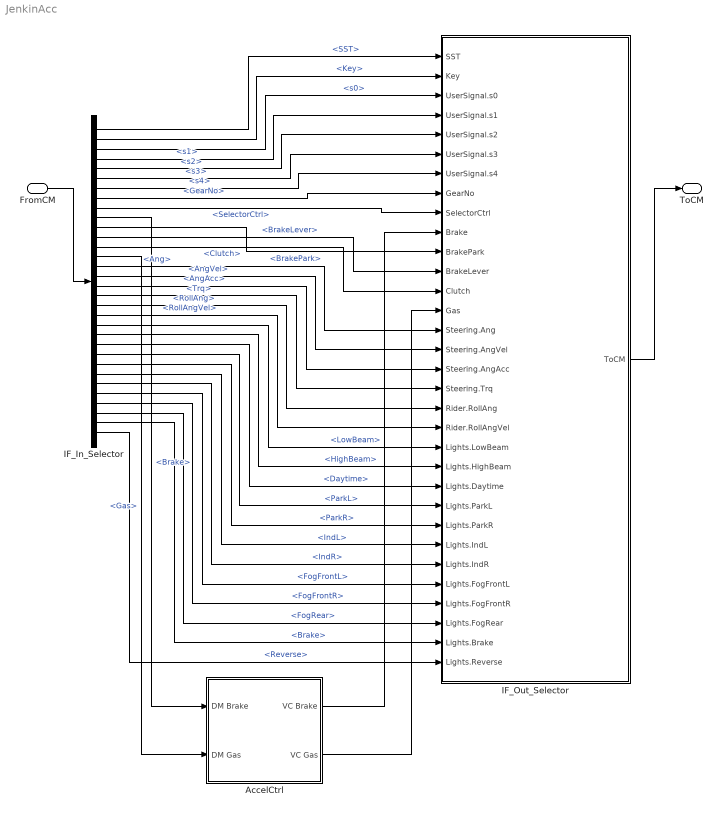
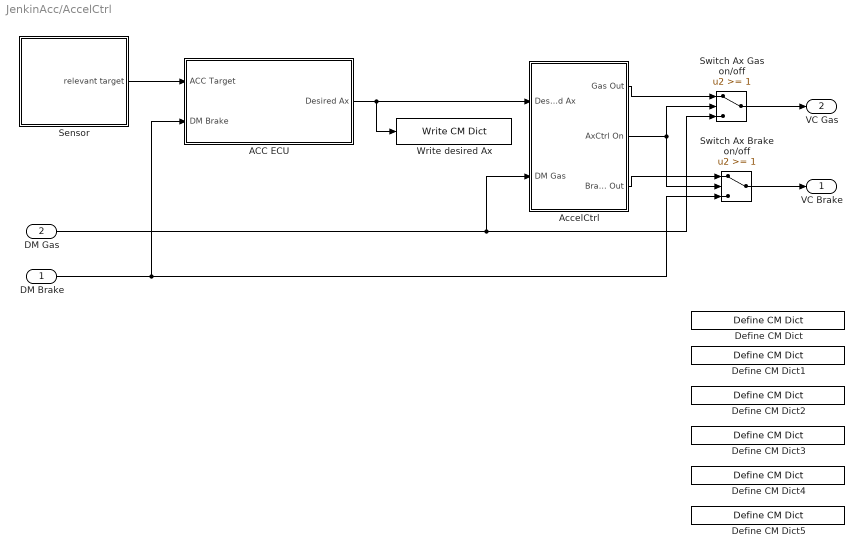
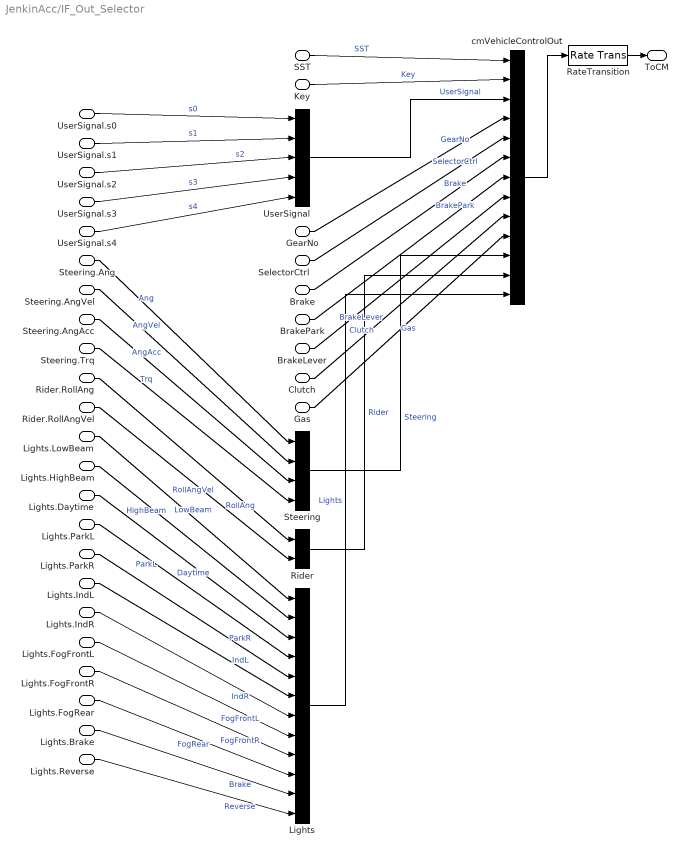
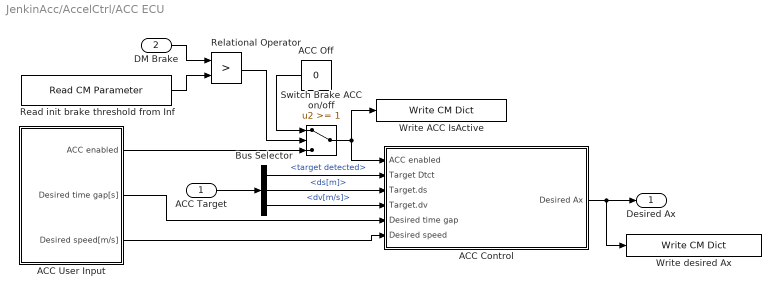
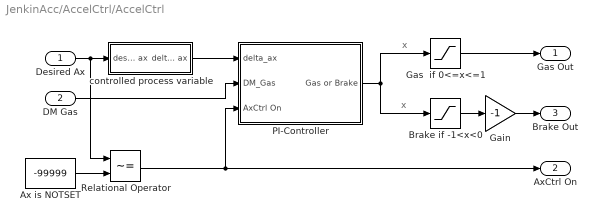
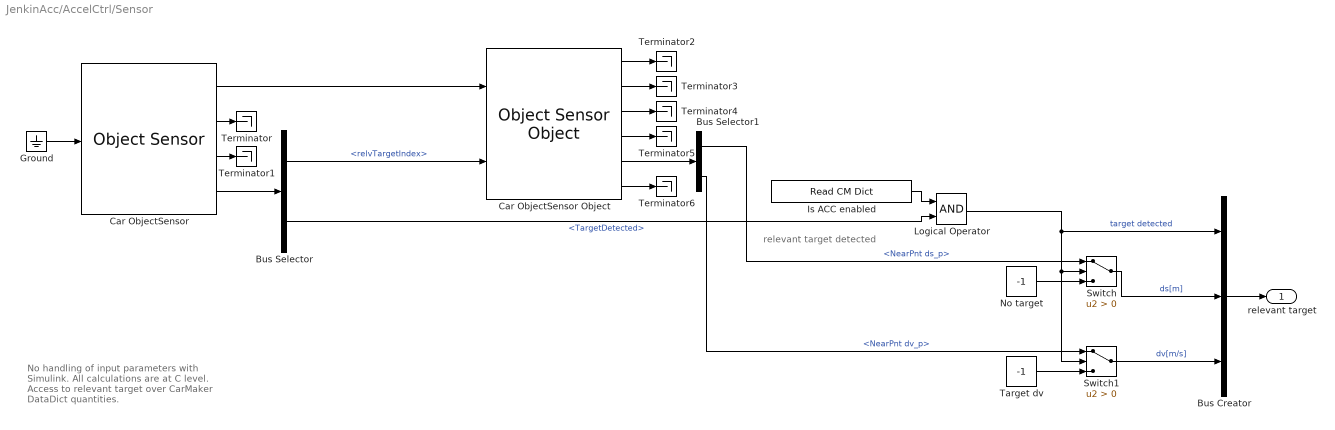
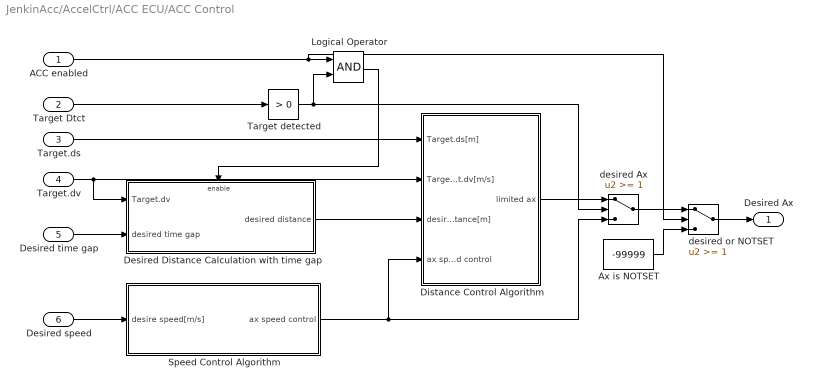
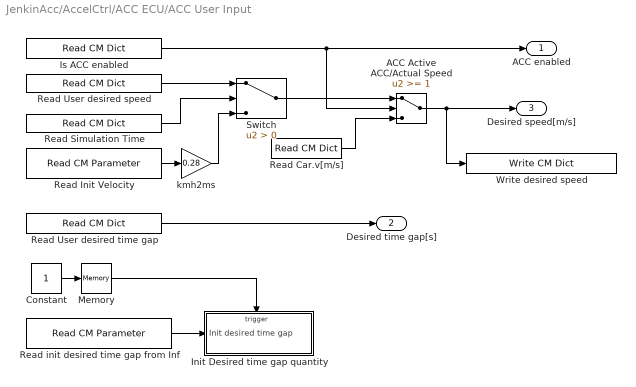
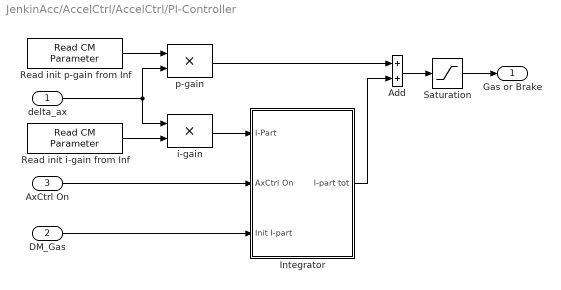
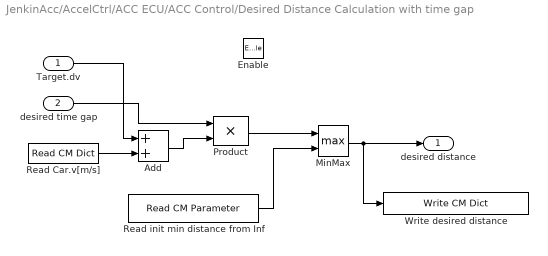
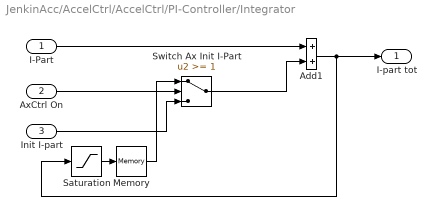
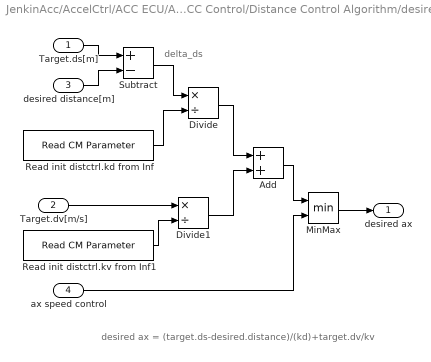
== system JenkinAcc/AccelCtrl/AccelCtrl/controlled process variable  ==
  desired ax : Inport
  Read Car.ax : CarMaker4SL/Read CM Dict  xname=Car.ax  xsync=off  xstime=Continuous
  Subtract : Sum  Inputs=+-  SaturateOnIntegerOverflow=on
  delta ax : Outport  VectorParamsAs1DForOutWhenUnconnected=off
  wires:
  desired ax/1 -> Subtract/1
  Read Car.ax/1 -> Subtract/2
  Subtract/1 -> delta ax/1

== system JenkinAcc/AccelCtrl/ACC ECU/ACC Control/Distance Control Algorithm ==
  Target.ds[m] : Inport
  Target.dv[m/s] : Inport  Port=2
  desired distance[m] : Inport  Port=3
  ax speed control : Inport  Port=4
  -2.5<=ax<=1 : Saturate  UpperLimit=1  LowerLimit=-2.5
  desired ax : Subsystem
  "  limited ax" : Outport  InitialOutput=0  VectorParamsAs1DForOutWhenUnconnected=off
  wires:
  ax speed control/1 -> desired ax/4(ax speed control)
  desired distance[m]/1 -> desired ax/3(desired distance[m])
  Target.dv[m/s]/1 -> desired ax/2(Target.dv[m/s])
  Target.ds[m]/1 -> desired ax/1(Target.ds[m])
  -2.5<=ax<=1/1 -> "  limited ax"/1
  desired ax/1(desired ax) -> -2.5<=ax<=1/1

== system JenkinAcc/AccelCtrl/ACC ECU/ACC Control/Speed Control Algorithm ==
  desire speed[m/s] : Inport
  -0.35<=ax<=1 : Saturate  UpperLimit=1  LowerLimit=-0.35
  desired ax : Subsystem
  ax speed control : Outport  InitialOutput=0  VectorParamsAs1DForOutWhenUnconnected=off
  wires:
  desire speed[m/s]/1 -> desired ax/1(desire speed[m/s])
  desired ax/1(desired ax) -> -0.35<=ax<=1/1
  -0.35<=ax<=1/1 -> ax speed control/1

== system JenkinAcc/AccelCtrl/ACC ECU/ACC User Input/Init Desired time gap quantity ==
  "Init desired time gap " : Inport
  Trigger : TriggerPort  VariantControl=Variant
  Write init time gap : CarMaker4SL/Write CM Dict  xname=AccelCtrl.ACC.DesiredTGap  xsync=off
  wires:
  "Init desired time gap "/1 -> Write init time gap/1

== system JenkinAcc/AccelCtrl/ACC ECU/ACC Control/Speed Control Algorithm/desired ax ==
  desire speed[m/s] : Inport
  Divide : Product  Inputs=*/  SaturateOnIntegerOverflow=on  OutDataTypeStr=Inherit: Same as first input
  Read Car.v[m/s] : CarMaker4SL/Read CM Dict  xname=Car.v  xsync=off  xstime=Continuous
  Read init spdctrl.kv from Inf : CarMaker4SL/Read CM Parameter  xfile=Vehicle  xkey=AccelCtrl.ACC.SpdCtrl.kv  xnout=1  xdefaults=13  xmuxed=off  xstime=Continuous
  Sum : Sum  Inputs=|+-  SaturateOnIntegerOverflow=on  OutDataTypeStr=Inherit: Same as first input
  desired ax : Outport  VectorParamsAs1DForOutWhenUnconnected=off
  wires:
  Divide/1 -> desired ax/1
  desire speed[m/s]/1 -> Sum/1
  Read Car.v[m/s]/1 -> Sum/2
  Sum/1 -> Divide/1
  Read init spdctrl.kv from Inf/1 -> Divide/2

/*
 * JenkinAcc.c
 *
 * Sponsored Third Party Support License -- for use only to support
 * products interfaced to MathWorks software under terms specified in your
 * company's restricted use license agreement.
 *
 * Code generation for model "JenkinAcc".
 *
 * Model version              : 1.4
 * Simulink Coder version : 9.4 (R2020b) 29-Jul-2020
 * C source code generated on : Mon May  1 15:18:40 2023
 *
 * Target selection: CarMaker.tlc
 * Note: GRT includes extra infrastructure and instrumentation for prototyping
 * Embedded hardware selection: Intel->x86-64 (Windows64)
 * Code generation objectives: Unspecified
 * Validation result: Not run
 */

#include <infoc.h>
#include <Log.h>
#include <InfoParam.h>
#include <DataDict.h>
#include <MatSupp.h>
#include "JenkinAcc.h"
#include "JenkinAcc_private.h"
#include "JenkinAcc_wrap.h"

/* CarMaker: Compile- and link-time checks for the right Matlab version. */
#if MATSUPP_NUMVER == 90900

/* The following statement will cause an "unresolved symbol" error when
   linking with a MatSupp library built for the wrong Matlab version. */
extern int MATSUPP_VARNAME(MatSupp, MATSUPP_NUMVER);
void *MATSUPP_VARNAME(MODEL, MATSUPP_NUMVER) = &MATSUPP_VARNAME(MatSupp,
  MATSUPP_NUMVER);

#else
# error Compiler options unsuitable for C code created with Matlab 9.9
#endif

const cmVehicleControlOut JenkinAcc_rtZcmVehicleControlOut = {
  0.0,                                 /* SST */
  0.0,                                 /* Key */

  {
    0.0,                               /* s0 */
    0.0,                               /* s1 */
    0.0,                               /* s2 */
    0.0,                               /* s3 */
    0.0                                /* s4 */
  },                                   /* UserSignal */
  0.0,                                 /* GearNo */
  0.0,                                 /* SelectorCtrl */
  0.0,                                 /* Brake */
  0.0,                                 /* BrakePark */
  0.0,                                 /* BrakeLever */
  0.0,                                 /* Clutch */
  0.0,                                 /* Gas */

  {
    0.0,                               /* Ang */
    0.0,                               /* AngVel */
    0.0,                               /* AngAcc */
    0.0                                /* Trq */
  },                                   /* Steering */

  {
    0.0,                               /* RollAng */
    0.0                                /* RollAngVel */
  },                                   /* Rider */

  {
    0.0,                               /* LowBeam */
    0.0,                               /* HighBeam */
    0.0,                               /* Daytime */
    0.0,                               /* ParkL */
    0.0,                               /* ParkR */
    0.0,                               /* IndL */
    0.0,                               /* IndR */
    0.0,                               /* FogFrontL */
    0.0,                               /* FogFrontR */
    0.0,                               /* FogRear */
    0.0,                               /* Brake */
    0.0                                /* Reverse */
  }                                    /* Lights */
} ;                                    /* cmVehicleControlOut ground */

const cmVehicleControlIn JenkinAcc_rtZcmVehicleControlIn = { 0.0,/* SST */
  0.0,                                 /* Key */
  { 0.0,                               /* s0 */
    0.0,                               /* s1 */
    0.0,                               /* s2 */
    0.0,                               /* s3 */
    0.0                                /* s4 */
  },                                   /* UserSignal */
  0.0,                                 /* GearNo */
  0.0,                                 /* SelectorCtrl */
  0.0,                                 /* Brake */
  0.0,                                 /* BrakePark */
  0.0,                                 /* BrakeLever */
  0.0,                                 /* Clutch */
  0.0,                                 /* Gas */
  { 0.0,                               /* Ang */
    0.0,                               /* AngVel */
    0.0,                               /* AngAcc */
    0.0                                /* Trq */
  },                                   /* Steering */
  { 0.0,                               /* RollAng */
    0.0                                /* RollAngVel */
  },                                   /* Rider */
  { 0.0,                               /* LowBeam */
    0.0,                               /* HighBeam */
    0.0,                               /* Daytime */
    0.0,                               /* ParkL */
    0.0,                               /* ParkR */
    0.0,                               /* IndL */
    0.0,                               /* IndR */
    0.0,                               /* FogFrontL */
    0.0,                               /* FogFrontR */
    0.0,                               /* FogRear */
    0.0,                               /* Brake */
    0.0                                /* Reverse */
  }                                    /* Lights */
};

/* Model step function */
void JenkinAcc_step(RT_MODEL_JenkinAcc_T *const JenkinAcc_M)
{
  B_JenkinAcc_T *JenkinAcc_B = JenkinAcc_M->blockIO;
  DW_JenkinAcc_T *JenkinAcc_DW = JenkinAcc_M->dwork;
  PrevZCX_JenkinAcc_T *JenkinAcc_PrevZCX = JenkinAcc_M->prevZCSigState;
  ExtU_JenkinAcc_T *JenkinAcc_U = (ExtU_JenkinAcc_T *) JenkinAcc_M->inputs;
  ExtY_JenkinAcc_T *JenkinAcc_Y = (ExtY_JenkinAcc_T *) JenkinAcc_M->outputs;
  real_T rtb_dvms;
  real_T rtb_targetdetected_0;
  real_T rtb_u35ax1;
  uint8_T rtb_Compare;
  boolean_T rtb_targetdetected;
  ZCEventType zcEvent;

  /* S-Function (cm_sensor_object): '<S18>/S-Function' */
  {
    const tObjectSensor *os;
    int sindex;
    static tObjectSensor ZeroSensor = { .relvTargetObjId = -1 };

    if (JenkinAcc_DW->SFunction_IWORK.SIsFirstStep) {
      JenkinAcc_DW->SFunction_IWORK.SIndex = ObjectSensor_FindIndexForName(
        "RadarL");
      JenkinAcc_DW->SFunction_PWORK.SSensor = ObjectSensor_GetByIndex
        (JenkinAcc_DW->SFunction_IWORK.SIndex);
      if (JenkinAcc_DW->SFunction_PWORK.SSensor == NULL) {
        JenkinAcc_DW->SFunction_PWORK.SSensor = &ZeroSensor;
        JenkinAcc_DW->SFunction_IWORK.SIndex = -1;
      }

      JenkinAcc_DW->SFunction_IWORK.SIsFirstStep = 0;
    }

    sindex = JenkinAcc_DW->SFunction_IWORK.SIndex;
    os = (const tObjectSensor *)JenkinAcc_DW->SFunction_PWORK.SSensor;
    JenkinAcc_B->SFunction_o1 = sindex;
    JenkinAcc_B->SFunction_o2[0] = os->trtype;
    JenkinAcc_B->SFunction_o2[1] = os->Range;
    JenkinAcc_B->SFunction_o2[2] = os->FoV[0];
    JenkinAcc_B->SFunction_o2[3] = os->FoV[1];
    JenkinAcc_B->SFunction_o2[4] = os->rot_zyx[0];
    JenkinAcc_B->SFunction_o2[5] = os->rot_zyx[1];
    JenkinAcc_B->SFunction_o2[6] = os->rot_zyx[2];
    JenkinAcc_B->SFunction_o2[7] = os->DrvLaneCurv;
    JenkinAcc_B->SFunction_o3 = os->nObsvObjects;
    JenkinAcc_B->SFunction_o4[0] = os->Targ_Dtct;
    JenkinAcc_B->SFunction_o4[1] = os->relvTargetObjId;
  }

  /* S-Function (cm_sensor_object_obj): '<S19>/S-Function' */
  {
    int osindex, obindex;
    const tObjectSensor *os;
    const tObjectSensorObj *ob;
    static tObjectSensor ZeroSensor = { .relvTargetObjId = -1 };

    static tObjectSensorObj ZeroObject = { .ObjId = -1 };

    osindex = JenkinAcc_B->SFunction_o1;
    if (SimCore.State != SCState_Simulate ||
        (os = ObjectSensor_GetByIndex(osindex)) == NULL) {
      os = &ZeroSensor;
      osindex = -1;
    }

    obindex = JenkinAcc_B->SFunction_o4[1];
    if (obindex == 99999) {
      obindex = os->relvTargetObjId;
    } else {
    }

    ob = ObjectSensor_GetObjectByObjId(osindex, obindex);
    if (ob == NULL) {
      ob = &ZeroObject;
      obindex = -1;
    }

    JenkinAcc_B->SFunction_o1_a = obindex;
    JenkinAcc_B->SFunction_o2_e[0] = Traffic_ObjId2TrfId(ob->ObjId);
    JenkinAcc_B->SFunction_o2_e[1] = ob->w;
    JenkinAcc_B->SFunction_o2_e[2] = ob->h;
    JenkinAcc_B->SFunction_o2_e[3] = ob->l;
    JenkinAcc_B->SFunction_o2_e[4] = ob->zOff;
    JenkinAcc_B->SFunction_o2_e[5] = ob->ObjId;
    JenkinAcc_B->SFunction_o3_m[0] = ob->obsv;
    JenkinAcc_B->SFunction_o3_m[1] = ob->dtct;
    JenkinAcc_B->SFunction_o4_c[0] = ob->RefPnt.ds[0];
    JenkinAcc_B->SFunction_o4_c[1] = ob->RefPnt.ds[1];
    JenkinAcc_B->SFunction_o4_c[2] = ob->RefPnt.ds[2];
    JenkinAcc_B->SFunction_o4_c[3] = ob->RefPnt.ds_p;
    JenkinAcc_B->SFunction_o4_c[4] = ob->RefPnt.dv[0];
    JenkinAcc_B->SFunction_o4_c[5] = ob->RefPnt.dv[1];
    JenkinAcc_B->SFunction_o4_c[6] = ob->RefPnt.dv[2];
    JenkinAcc_B->SFunction_o4_c[7] = ob->RefPnt.dv_p;
    JenkinAcc_B->SFunction_o4_c[8] = ob->RefPnt.alpha_p;
    JenkinAcc_B->SFunction_o4_c[9] = ob->RefPnt.theta_p;
    JenkinAcc_B->SFunction_o4_c[10] = ob->RefPnt.r_zyx[0];
    JenkinAcc_B->SFunction_o4_c[11] = ob->RefPnt.r_zyx[1];
    JenkinAcc_B->SFunction_o4_c[12] = ob->RefPnt.r_zyx[2];
    JenkinAcc_B->SFunction_o5[0] = ob->NearPnt.ds[0];
    JenkinAcc_B->SFunction_o5[1] = ob->NearPnt.ds[1];
    JenkinAcc_B->SFunction_o5[2] = ob->NearPnt.ds[2];
    JenkinAcc_B->SFunction_o5[3] = ob->NearPnt.ds_p;
    JenkinAcc_B->SFunction_o5[4] = ob->NearPnt.dv[0];
    JenkinAcc_B->SFunction_o5[5] = ob->NearPnt.dv[1];
    JenkinAcc_B->SFunction_o5[6] = ob->NearPnt.dv[2];
    JenkinAcc_B->SFunction_o5[7] = ob->NearPnt.dv_p;
    JenkinAcc_B->SFunction_o5[8] = ob->NearPnt.alpha_p;
    JenkinAcc_B->SFunction_o5[9] = ob->NearPnt.theta_p;
    JenkinAcc_B->SFunction_o5[10] = ob->NearPnt.r_zyx[0];
    JenkinAcc_B->SFunction_o5[11] = ob->NearPnt.r_zyx[1];
    JenkinAcc_B->SFunction_o5[12] = ob->NearPnt.r_zyx[2];
    JenkinAcc_B->SFunction_o6[0] = ob->incangle[0];
    JenkinAcc_B->SFunction_o6[1] = ob->incangle[1];
    JenkinAcc_B->SFunction_o6[2] = ob->ImgArea_NearP;
    JenkinAcc_B->SFunction_o6[3] = ob->ImgArea_LeftP;
    JenkinAcc_B->SFunction_o6[4] = ob->ImgArea_RightP;
  }

  /* S-Function (read_dict): '<S5>/Is ACC enabled' */
  {
    tDDictEntry *e;
    e = (tDDictEntry *)JenkinAcc_DW->IsACCenabled_PWORK.Entry;
    if (!JenkinAcc_DW->IsACCenabled_IWORK.Checked) {
      JenkinAcc_DW->IsACCenabled_IWORK.Checked = 1;
      DDictErrorUponFakedEntry(e, "Model 'JenkinAcc'");
    }

    JenkinAcc_B->IsACCenabled = e->GetFunc(e->Var);
  }

  /* Logic: '<S5>/Logical Operator' */
  rtb_targetdetected = ((JenkinAcc_B->IsACCenabled != 0.0) &&
                        (JenkinAcc_B->SFunction_o4[0] != 0.0));

  /* Switch: '<S5>/Switch1' incorporates:
   *  Constant: '<S5>/Target dv'
   */
  if (rtb_targetdetected) {
    rtb_dvms = JenkinAcc_B->SFunction_o5[7];
  } else {
    rtb_dvms = JenkinAcc_P.Targetdv_Value;
  }

  /* End of Switch: '<S5>/Switch1' */

  /* S-Function (read_dict): '<S7>/Read User desired time gap' */
  {
    tDDictEntry *e;
    e = (tDDictEntry *)JenkinAcc_DW->ReadUserdesiredtimegap_PWORK.Entry;
    if (!JenkinAcc_DW->ReadUserdesiredtimegap_IWORK.Checked) {
      JenkinAcc_DW->ReadUserdesiredtimegap_IWORK.Checked = 1;
      DDictErrorUponFakedEntry(e, "Model 'JenkinAcc'");
    }

    JenkinAcc_B->ReadUserdesiredtimegap = e->GetFunc(e->Var);
  }

  /* S-Function (read_infoparam): '<S3>/Read init brake threshold from Inf' */
  {
    const double *vec = InfoParam_GetVec
      (JenkinAcc_DW->ReadinitbrakethresholdfromInf_PWORK.InfoParam, NULL);
    JenkinAcc_B->ReadinitbrakethresholdfromInf = *vec++;
  }

  /* S-Function (read_dict): '<S7>/Is ACC enabled' */
  {
    tDDictEntry *e;
    e = (tDDictEntry *)JenkinAcc_DW->IsACCenabled_PWORK_b.Entry;
    if (!JenkinAcc_DW->IsACCenabled_IWORK_n.Checked) {
      JenkinAcc_DW->IsACCenabled_IWORK_n.Checked = 1;
      DDictErrorUponFakedEntry(e, "Model 'JenkinAcc'");
    }

    JenkinAcc_B->IsACCenabled_i = e->GetFunc(e->Var);
  }

  /* Switch: '<S3>/Switch Brake  ACC on//off' incorporates:
   *  Inport: '<Root>/FromCM'
   *  RelationalOperator: '<S3>/Relational Operator'
   */
  if (JenkinAcc_U->FromCM.Brake > JenkinAcc_B->ReadinitbrakethresholdfromInf) {
    /* Switch: '<S3>/Switch Brake  ACC on//off' incorporates:
     *  Constant: '<S3>/ACC Off'
     */
    JenkinAcc_B->SwitchBrakeACConoff = JenkinAcc_P.ACCOff_Value;
  } else {
    /* Switch: '<S3>/Switch Brake  ACC on//off' */
    JenkinAcc_B->SwitchBrakeACConoff = JenkinAcc_B->IsACCenabled_i;
  }

  /* End of Switch: '<S3>/Switch Brake  ACC on//off' */

  /* RelationalOperator: '<S11>/Compare' incorporates:
   *  Constant: '<S11>/Constant'
   */
  rtb_Compare = (uint8_T)((int32_T)rtb_targetdetected > (int32_T)
    JenkinAcc_P.Constant_Value_n);

  /* Outputs for Enabled SubSystem: '<S6>/Desired Distance Calculation with time gap' incorporates:
   *  EnablePort: '<S8>/Enable'
   */
  /* Logic: '<S6>/Logical Operator' */
  if ((JenkinAcc_B->SwitchBrakeACConoff != 0.0) && (rtb_Compare != 0)) {
    /* S-Function (read_dict): '<S8>/Read Car.v[m//s]' */
    {
      tDDictEntry *e;
      e = (tDDictEntry *)JenkinAcc_DW->ReadCarvms_PWORK_k.Entry;
      if (!JenkinAcc_DW->ReadCarvms_IWORK_n.Checked) {
        JenkinAcc_DW->ReadCarvms_IWORK_n.Checked = 1;
        DDictErrorUponFakedEntry(e, "Model 'JenkinAcc'");
      }

      JenkinAcc_B->ReadCarvms_n = e->GetFunc(e->Var);
    }

    /* S-Function (read_infoparam): '<S8>/Read init min distance from Inf' */
    {
      const double *vec = InfoParam_GetVec
        (JenkinAcc_DW->ReadinitmindistancefromInf_PWORK.InfoParam, NULL);
      JenkinAcc_B->ReadinitmindistancefromInf = *vec++;
    }

    /* MinMax: '<S8>/MinMax' incorporates:
     *  Product: '<S8>/Product'
     *  Sum: '<S8>/Add'
     */
    JenkinAcc_B->MinMax = fmax((rtb_dvms + JenkinAcc_B->ReadCarvms_n) *
      JenkinAcc_B->ReadUserdesiredtimegap,
      JenkinAcc_B->ReadinitmindistancefromInf);

    /* S-Function (write_dict): '<S8>/Write desired distance' */
    {
      tDDictEntry *e;
      real_T value;
      e = (tDDictEntry *)JenkinAcc_DW->Writedesireddistance_PWORK.Entry;
      if (!JenkinAcc_DW->Writedesireddistance_IWORK.Checked) {
        JenkinAcc_DW->Writedesireddistance_IWORK.Checked = 1;
        DDictErrorUponFakedEntry(e, "Model 'JenkinAcc'");
      }

      value = JenkinAcc_B->MinMax;
      DVA_PokeSL(e, value);
    }
  }

  /* End of Logic: '<S6>/Logical Operator' */
  /* End of Outputs for SubSystem: '<S6>/Desired Distance Calculation with time gap' */

  /* S-Function (read_dict): '<S7>/Read User desired speed' */
  {
    tDDictEntry *e;
    e = (tDDictEntry *)JenkinAcc_DW->ReadUserdesiredspeed_PWORK.Entry;
    if (!JenkinAcc_DW->ReadUserdesiredspeed_IWORK.Checked) {
      JenkinAcc_DW->ReadUserdesiredspeed_IWORK.Checked = 1;
      DDictErrorUponFakedEntry(e, "Model 'JenkinAcc'");
    }

    JenkinAcc_B->ReadUserdesiredspeed = e->GetFunc(e->Var);
  }

  /* S-Function (read_dict): '<S7>/Read Simulation Time' */
  {
    tDDictEntry *e;
    e = (tDDictEntry *)JenkinAcc_DW->ReadSimulationTime_PWORK.Entry;
    if (!JenkinAcc_DW->ReadSimulationTime_IWORK.Checked) {
      JenkinAcc_DW->ReadSimulationTime_IWORK.Checked = 1;
      DDictErrorUponFakedEntry(e, "Model 'JenkinAcc'");
    }

    JenkinAcc_B->ReadSimulationTime = e->GetFunc(e->Var);
  }

  /* S-Function (read_infoparam): '<S7>/Read Init Velocity' */
  {
    const double *vec = InfoParam_GetVec
      (JenkinAcc_DW->ReadInitVelocity_PWORK.InfoParam, NULL);
    JenkinAcc_B->ReadInitVelocity = *vec++;
  }

  /* S-Function (read_dict): '<S7>/Read Car.v[m//s]' */
  {
    tDDictEntry *e;
    e = (tDDictEntry *)JenkinAcc_DW->ReadCarvms_PWORK.Entry;
    if (!JenkinAcc_DW->ReadCarvms_IWORK.Checked) {
      JenkinAcc_DW->ReadCarvms_IWORK.Checked = 1;
      DDictErrorUponFakedEntry(e, "Model 'JenkinAcc'");
    }

    JenkinAcc_B->ReadCarvms = e->GetFunc(e->Var);
  }

  /* Switch: '<S7>/ACC Active ACC//Actual Speed' */
  if (JenkinAcc_B->IsACCenabled_i >=
      JenkinAcc_P.ACCActiveACCActualSpeed_Threshold) {
    /* Switch: '<S7>/Switch' */
    if (JenkinAcc_B->ReadSimulationTime > JenkinAcc_P.Switch_Threshold) {
      /* Switch: '<S7>/ACC Active ACC//Actual Speed' */
      JenkinAcc_B->ACCActiveACCActualSpeed = JenkinAcc_B->ReadUserdesiredspeed;
    } else {
      /* Switch: '<S7>/ACC Active ACC//Actual Speed' incorporates:
       *  Gain: '<S7>/kmh2ms'
       */
      JenkinAcc_B->ACCActiveACCActualSpeed = JenkinAcc_P.kmh2ms_Gain *
        JenkinAcc_B->ReadInitVelocity;
    }

    /* End of Switch: '<S7>/Switch' */
  } else {
    /* Switch: '<S7>/ACC Active ACC//Actual Speed' */
    JenkinAcc_B->ACCActiveACCActualSpeed = JenkinAcc_B->ReadCarvms;
  }

  /* End of Switch: '<S7>/ACC Active ACC//Actual Speed' */

  /* Outputs for Atomic SubSystem: '<S6>/Speed Control Algorithm' */
  /* S-Function (read_dict): '<S13>/Read Car.v[m//s]' */
  {
    tDDictEntry *e;
    e = (tDDictEntry *)JenkinAcc_DW->ReadCarvms_PWORK_e.Entry;
    if (!JenkinAcc_DW->ReadCarvms_IWORK_h.Checked) {
      JenkinAcc_DW->ReadCarvms_IWORK_h.Checked = 1;
      DDictErrorUponFakedEntry(e, "Model 'JenkinAcc'");
    }

    JenkinAcc_B->ReadCarvms_h = e->GetFunc(e->Var);
  }

  /* S-Function (read_infoparam): '<S13>/Read init spdctrl.kv from Inf' */
  {
    const double *vec = InfoParam_GetVec
      (JenkinAcc_DW->ReadinitspdctrlkvfromInf_PWORK.InfoParam, NULL);
    JenkinAcc_B->ReadinitspdctrlkvfromInf = *vec++;
  }

  /* Product: '<S13>/Divide' incorporates:
   *  Sum: '<S13>/Sum'
   */
  rtb_u35ax1 = (JenkinAcc_B->ACCActiveACCActualSpeed - JenkinAcc_B->ReadCarvms_h)
    / JenkinAcc_B->ReadinitspdctrlkvfromInf;

  /* End of Outputs for SubSystem: '<S6>/Speed Control Algorithm' */

  /* Outputs for Atomic SubSystem: '<S6>/Distance Control Algorithm' */
  /* S-Function (read_infoparam): '<S12>/Read init distctrl.kd from Inf' */
  {
    const double *vec = InfoParam_GetVec
      (JenkinAcc_DW->ReadinitdistctrlkdfromInf_PWORK.InfoParam, NULL);
    JenkinAcc_B->ReadinitdistctrlkdfromInf = *vec++;
  }

  /* S-Function (read_infoparam): '<S12>/Read init distctrl.kv from Inf1' */
  {
    const double *vec = InfoParam_GetVec
      (JenkinAcc_DW->ReadinitdistctrlkvfromInf1_PWORK.InfoParam, NULL);
    JenkinAcc_B->ReadinitdistctrlkvfromInf1 = *vec++;
  }

  /* End of Outputs for SubSystem: '<S6>/Distance Control Algorithm' */

  /* Switch: '<S6>/desired or NOTSET' */
  if (JenkinAcc_B->SwitchBrakeACConoff >= JenkinAcc_P.desiredorNOTSET_Threshold)
  {
    /* Switch: '<S6>/desired Ax' incorporates:
     *  Saturate: '<S10>/-0.35<=ax<=1'
     */
    if (rtb_Compare >= JenkinAcc_P.desiredAx_Threshold) {
      /* Switch: '<S5>/Switch' incorporates:
       *  Constant: '<S5>/No target'
       */
      if (rtb_targetdetected) {
        rtb_targetdetected_0 = JenkinAcc_B->SFunction_o5[3];
      } else {
        rtb_targetdetected_0 = JenkinAcc_P.Notarget_Value;
      }

      /* End of Switch: '<S5>/Switch' */

      /* Outputs for Atomic SubSystem: '<S6>/Speed Control Algorithm' */
      /* Saturate: '<S10>/-0.35<=ax<=1' */
      if (rtb_u35ax1 > JenkinAcc_P.u35ax1_UpperSat) {
        rtb_u35ax1 = JenkinAcc_P.u35ax1_UpperSat;
      } else {
        if (rtb_u35ax1 < JenkinAcc_P.u35ax1_LowerSat) {
          rtb_u35ax1 = JenkinAcc_P.u35ax1_LowerSat;
        }
      }

      /* End of Outputs for SubSystem: '<S6>/Speed Control Algorithm' */

      /* Outputs for Atomic SubSystem: '<S6>/Distance Control Algorithm' */
      /* MinMax: '<S12>/MinMax' incorporates:
       *  Product: '<S12>/Divide'
       *  Product: '<S12>/Divide1'
       *  Sum: '<S12>/Add'
       *  Sum: '<S12>/Subtract'
       */
      rtb_u35ax1 = fmin((rtb_targetdetected_0 - JenkinAcc_B->MinMax) /
                        JenkinAcc_B->ReadinitdistctrlkdfromInf + rtb_dvms /
                        JenkinAcc_B->ReadinitdistctrlkvfromInf1, rtb_u35ax1);

      /* Saturate: '<S9>/-2.5<=ax<=1' */
      if (rtb_u35ax1 > JenkinAcc_P.u5ax1_UpperSat) {
        /* Switch: '<S6>/desired or NOTSET' */
        JenkinAcc_B->desiredorNOTSET = JenkinAcc_P.u5ax1_UpperSat;
      } else if (rtb_u35ax1 < JenkinAcc_P.u5ax1_LowerSat) {
        /* Switch: '<S6>/desired or NOTSET' */
        JenkinAcc_B->desiredorNOTSET = JenkinAcc_P.u5ax1_LowerSat;
      } else {
        /* Switch: '<S6>/desired or NOTSET' */
        JenkinAcc_B->desiredorNOTSET = rtb_u35ax1;
      }

      /* End of Saturate: '<S9>/-2.5<=ax<=1' */
      /* End of Outputs for SubSystem: '<S6>/Distance Control Algorithm' */
    } else {
      /* Outputs for Atomic SubSystem: '<S6>/Speed Control Algorithm' */
      if (rtb_u35ax1 > JenkinAcc_P.u35ax1_UpperSat) {
        /* Saturate: '<S10>/-0.35<=ax<=1' incorporates:
         *  Switch: '<S6>/desired or NOTSET'
         */
        JenkinAcc_B->desiredorNOTSET = JenkinAcc_P.u35ax1_UpperSat;
      } else if (rtb_u35ax1 < JenkinAcc_P.u35ax1_LowerSat) {
        /* Saturate: '<S10>/-0.35<=ax<=1' incorporates:
         *  Switch: '<S6>/desired or NOTSET'
         */
        JenkinAcc_B->desiredorNOTSET = JenkinAcc_P.u35ax1_LowerSat;
      } else {
        /* Switch: '<S6>/desired or NOTSET' incorporates:
         *  Saturate: '<S10>/-0.35<=ax<=1'
         */
        JenkinAcc_B->desiredorNOTSET = rtb_u35ax1;
      }

      /* End of Outputs for SubSystem: '<S6>/Speed Control Algorithm' */
    }

    /* End of Switch: '<S6>/desired Ax' */
  } else {
    /* Switch: '<S6>/desired or NOTSET' incorporates:
     *  Constant: '<S6>/Ax is NOTSET'
     */
    JenkinAcc_B->desiredorNOTSET = JenkinAcc_P.AxisNOTSET_Value;
  }

  /* End of Switch: '<S6>/desired or NOTSET' */

  /* S-Function (write_dict): '<S1>/Write desired Ax' */
  {
    tDDictEntry *e;
    real_T value;
    e = (tDDictEntry *)JenkinAcc_DW->WritedesiredAx_PWORK.Entry;
    if (!JenkinAcc_DW->WritedesiredAx_IWORK.Checked) {
      JenkinAcc_DW->WritedesiredAx_IWORK.Checked = 1;
      DDictErrorUponFakedEntry(e, "Model 'JenkinAcc'");
    }

    value = JenkinAcc_B->desiredorNOTSET;
    DVA_PokeSL(e, value);
  }

  /* S-Function (write_dict): '<S3>/Write ACC IsActive' */
  {
    tDDictEntry *e;
    real_T value;
    e = (tDDictEntry *)JenkinAcc_DW->WriteACCIsActive_PWORK.Entry;
    if (!JenkinAcc_DW->WriteACCIsActive_IWORK.Checked) {
      JenkinAcc_DW->WriteACCIsActive_IWORK.Checked = 1;
      DDictErrorUponFakedEntry(e, "Model 'JenkinAcc'");
    }

    value = JenkinAcc_B->SwitchBrakeACConoff;
    DVA_PokeSL(e, value);
  }

  /* S-Function (write_dict): '<S3>/Write desired Ax' */
  {
    tDDictEntry *e;
    real_T value;
    e = (tDDictEntry *)JenkinAcc_DW->WritedesiredAx_PWORK_p.Entry;
    if (!JenkinAcc_DW->WritedesiredAx_IWORK_i.Checked) {
      JenkinAcc_DW->WritedesiredAx_IWORK_i.Checked = 1;
      DDictErrorUponFakedEntry(e, "Model 'JenkinAcc'");
    }

    value = JenkinAcc_B->desiredorNOTSET;
    DVA_PokeSL(e, value);
  }

  /* S-Function (write_dict): '<S7>/Write desired speed' */
  {
    tDDictEntry *e;
    real_T value;
    e = (tDDictEntry *)JenkinAcc_DW->Writedesiredspeed_PWORK.Entry;
    if (!JenkinAcc_DW->Writedesiredspeed_IWORK.Checked) {
      JenkinAcc_DW->Writedesiredspeed_IWORK.Checked = 1;
      DDictErrorUponFakedEntry(e, "Model 'JenkinAcc'");
    }

    value = JenkinAcc_B->ACCActiveACCActualSpeed;
    DVA_PokeSL(e, value);
  }

  /* S-Function (read_infoparam): '<S7>/Read init desired time gap from Inf' */
  {
    const double *vec = InfoParam_GetVec
      (JenkinAcc_DW->ReadinitdesiredtimegapfromInf_PWORK.InfoParam, NULL);
    JenkinAcc_B->ReadinitdesiredtimegapfromInf = *vec++;
  }

  /* Outputs for Triggered SubSystem: '<S7>/Init Desired time gap quantity' incorporates:
   *  TriggerPort: '<S14>/Trigger'
   */
  /* Memory: '<S7>/Memory' */
  zcEvent = rt_ZCFcn(RISING_ZERO_CROSSING,
                     &JenkinAcc_PrevZCX->InitDesiredtimegapquantity_Trig_ZCE,
                     (JenkinAcc_DW->Memory_PreviousInput));
  if (zcEvent != NO_ZCEVENT) {
    /* S-Function (write_dict): '<S14>/Write init time gap' */
    {
      tDDictEntry *e;
      real_T value;
      e = (tDDictEntry *)JenkinAcc_DW->Writeinittimegap_PWORK.Entry;
      if (!JenkinAcc_DW->Writeinittimegap_IWORK.Checked) {
        JenkinAcc_DW->Writeinittimegap_IWORK.Checked = 1;
        DDictErrorUponFakedEntry(e, "Model 'JenkinAcc'");
      }

      value = JenkinAcc_B->ReadinitdesiredtimegapfromInf;
      DVA_PokeSL(e, value);
    }
  }

  /* End of Outputs for SubSystem: '<S7>/Init Desired time gap quantity' */
  /* S-Function (read_infoparam): '<S15>/Read init p-gain from Inf' */
  {
    const double *vec = InfoParam_GetVec
      (JenkinAcc_DW->ReadinitpgainfromInf_PWORK.InfoParam, NULL);
    JenkinAcc_B->ReadinitpgainfromInf = *vec++;
  }

  /* S-Function (read_dict): '<S16>/Read Car.ax' */
  {
    tDDictEntry *e;
    e = (tDDictEntry *)JenkinAcc_DW->ReadCarax_PWORK.Entry;
    if (!JenkinAcc_DW->ReadCarax_IWORK.Checked) {
      JenkinAcc_DW->ReadCarax_IWORK.Checked = 1;
      DDictErrorUponFakedEntry(e, "Model 'JenkinAcc'");
    }

    JenkinAcc_B->ReadCarax = e->GetFunc(e->Var);
  }

  /* Sum: '<S16>/Subtract' */
  rtb_dvms = JenkinAcc_B->desiredorNOTSET - JenkinAcc_B->ReadCarax;

  /* Product: '<S15>/p-gain' */
  rtb_u35ax1 = JenkinAcc_B->ReadinitpgainfromInf * rtb_dvms;

  /* S-Function (read_infoparam): '<S15>/Read init i-gain from Inf' */
  {
    const double *vec = InfoParam_GetVec
      (JenkinAcc_DW->ReadinitigainfromInf_PWORK.InfoParam, NULL);
    JenkinAcc_B->ReadinitigainfromInf = *vec++;
  }

  /* RelationalOperator: '<S4>/Relational Operator' incorporates:
   *  Constant: '<S4>/Ax is NOTSET'
   */
  rtb_targetdetected = (JenkinAcc_B->desiredorNOTSET !=
                        JenkinAcc_P.AxisNOTSET_Value_e);

  /* Switch: '<S17>/Switch Ax  Init I-Part' incorporates:
   *  Inport: '<Root>/FromCM'
   *  Memory: '<S17>/Memory'
   */
  if (rtb_targetdetected) {
    rtb_targetdetected_0 = JenkinAcc_DW->Memory_PreviousInput_b;
  } else {
    rtb_targetdetected_0 = JenkinAcc_U->FromCM.Gas;
  }

  /* End of Switch: '<S17>/Switch Ax  Init I-Part' */

  /* Sum: '<S17>/Add1' incorporates:
   *  Product: '<S15>/i-gain'
   */
  rtb_dvms = rtb_dvms * JenkinAcc_B->ReadinitigainfromInf + rtb_targetdetected_0;

  /* Sum: '<S15>/Add' */
  rtb_u35ax1 += rtb_dvms;

  /* Saturate: '<S15>/Saturation' */
  if (rtb_u35ax1 > JenkinAcc_P.Saturation_UpperSat) {
    rtb_u35ax1 = JenkinAcc_P.Saturation_UpperSat;
  } else {
    if (rtb_u35ax1 < JenkinAcc_P.Saturation_LowerSat) {
      rtb_u35ax1 = JenkinAcc_P.Saturation_LowerSat;
    }
  }

  /* End of Saturate: '<S15>/Saturation' */

  /* Saturate: '<S17>/Saturation' */
  if (rtb_dvms > JenkinAcc_P.Saturation_UpperSat_f) {
    /* Update for Memory: '<S17>/Memory' */
    JenkinAcc_DW->Memory_PreviousInput_b = JenkinAcc_P.Saturation_UpperSat_f;
  } else if (rtb_dvms < JenkinAcc_P.Saturation_LowerSat_e) {
    /* Update for Memory: '<S17>/Memory' */
    JenkinAcc_DW->Memory_PreviousInput_b = JenkinAcc_P.Saturation_LowerSat_e;
  } else {
    /* Update for Memory: '<S17>/Memory' */
    JenkinAcc_DW->Memory_PreviousInput_b = rtb_dvms;
  }

  /* End of Saturate: '<S17>/Saturation' */

  /* Switch: '<S1>/Switch Ax  Brake on//off' incorporates:
   *  Switch: '<S1>/Switch Ax  Gas on//off'
   */
  if (rtb_targetdetected) {
    /* Saturate: '<S4>/Brake if -1<x<0' */
    if (rtb_u35ax1 > JenkinAcc_P.Brakeif1x0_UpperSat) {
      rtb_dvms = JenkinAcc_P.Brakeif1x0_UpperSat;
    } else if (rtb_u35ax1 < JenkinAcc_P.Brakeif1x0_LowerSat) {
      rtb_dvms = JenkinAcc_P.Brakeif1x0_LowerSat;
    } else {
      rtb_dvms = rtb_u35ax1;
    }

    /* End of Saturate: '<S4>/Brake if -1<x<0' */

    /* Outport: '<Root>/ToCM' incorporates:
     *  Gain: '<S4>/Gain'
     */
    JenkinAcc_Y->ToCM.Brake = JenkinAcc_P.Gain_Gain * rtb_dvms;

    /* Saturate: '<S4>/Gas  if 0<=x<=1' */
    if (rtb_u35ax1 > JenkinAcc_P.Gasif0x1_UpperSat) {
      /* Outport: '<Root>/ToCM' */
      JenkinAcc_Y->ToCM.Gas = JenkinAcc_P.Gasif0x1_UpperSat;
    } else if (rtb_u35ax1 < JenkinAcc_P.Gasif0x1_LowerSat) {
      /* Outport: '<Root>/ToCM' */
      JenkinAcc_Y->ToCM.Gas = JenkinAcc_P.Gasif0x1_LowerSat;
    } else {
      /* Outport: '<Root>/ToCM' */
      JenkinAcc_Y->ToCM.Gas = rtb_u35ax1;
    }

    /* End of Saturate: '<S4>/Gas  if 0<=x<=1' */
  } else {
    /* Outport: '<Root>/ToCM' incorporates:
     *  Inport: '<Root>/FromCM'
     */
    JenkinAcc_Y->ToCM.Brake = JenkinAcc_U->FromCM.Brake;
    JenkinAcc_Y->ToCM.Gas = JenkinAcc_U->FromCM.Gas;
  }

  /* End of Switch: '<S1>/Switch Ax  Brake on//off' */

  /* Outport: '<Root>/ToCM' incorporates:
   *  BusCreator generated from: '<Root>/ToCM'
   *  Inport: '<Root>/FromCM'
   */
  JenkinAcc_Y->ToCM.SST = JenkinAcc_U->FromCM.SST;
  JenkinAcc_Y->ToCM.Key = JenkinAcc_U->FromCM.Key;
  JenkinAcc_Y->ToCM.UserSignal = JenkinAcc_U->FromCM.UserSignal;
  JenkinAcc_Y->ToCM.GearNo = JenkinAcc_U->FromCM.GearNo;
  JenkinAcc_Y->ToCM.SelectorCtrl = JenkinAcc_U->FromCM.SelectorCtrl;
  JenkinAcc_Y->ToCM.BrakePark = JenkinAcc_U->FromCM.BrakePark;
  JenkinAcc_Y->ToCM.BrakeLever = JenkinAcc_U->FromCM.BrakeLever;
  JenkinAcc_Y->ToCM.Clutch = JenkinAcc_U->FromCM.Clutch;
  JenkinAcc_Y->ToCM.Steering = JenkinAcc_U->FromCM.Steering;
  JenkinAcc_Y->ToCM.Rider = JenkinAcc_U->FromCM.Rider;
  JenkinAcc_Y->ToCM.Lights = JenkinAcc_U->FromCM.Lights;

  /* Update for Memory: '<S7>/Memory' incorporates:
   *  Constant: '<S7>/Constant'
   */
  JenkinAcc_DW->Memory_PreviousInput = JenkinAcc_P.Constant_Value;
}
